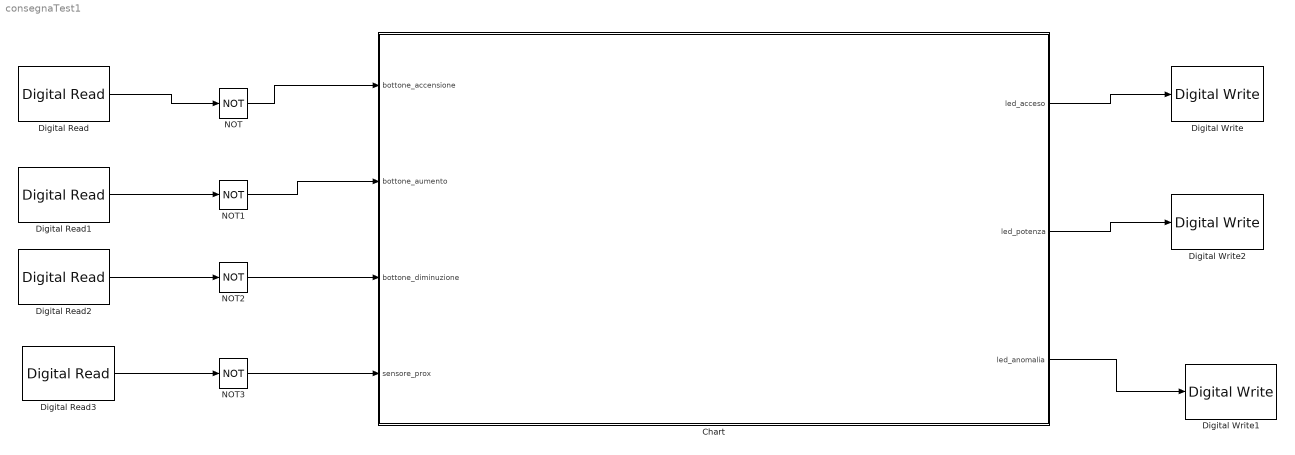
== stateflow chart consegnaTest1/Chart ==
  state Fornello_induzione
    state Accensione [parallel]
      state led_accensione [parallel]
        state led_acceso
          led_acceso=1;
        state led_spento
          led_acceso = 0;
        (default) -> Fornello_induzione.Accensione.led_accensione.led_spento
        Fornello_induzione.Accensione.led_accensione.led_acceso -> Fornello_induzione.Accensione.led_accensione.led_spento : [evento_spegnimento == 1]
        Fornello_induzione.Accensione.led_accensione.led_spento -> Fornello_induzione.Accensione.led_accensione.led_acceso : [bottone_accensione == 1 && evento_spegnimento == 0]
      state Logica_Accensione_Spegnimento [parallel]
        state Acceso
          acceso = 1;
        state Spento
          acceso = 0;
        (default) -> Spento
        Acceso -> Spento : [evento_spegnimento == 1]
        Spento -> Acceso : [bottone_accensione == 1 && evento_spegnimento == 0]
      state Bottone_Accensione [parallel]
        state NonPremuto
          evento_spegnimento = 0;
        state InPressione
        state Premuto
          evento_spegnimento = 1;
        (default) -> NonPremuto
        InPressione -> Premuto [order 2] : [after(1,sec)]
        NonPremuto -> InPressione : [bottone_accensione == 1 && acceso == 1]
        InPressione -> NonPremuto [order 1] : [bottone_accensione == 0]
        Premuto -> NonPremuto : [bottone_accensione == 0]
      (default) -> led_accensione [order 3]
      (default) -> Logica_Accensione_Spegnimento [order 1]
      (default) -> Bottone_Accensione [order 2]
    state Cambiamento_Potenza_Fornello [parallel]
      state Gestione_Potenza [parallel]
        state Potenza_300
          potenza=300;
          frequenza=2;
          attivo = 1;
        state Potenza_500
          potenza=500;
          frequenza=1;
          attivo = 1;
        state Appoggio
          en: app = contatore;
        state Potenza_Attivabile
          potenza = 0;
          attivo = 0;
          frequenza = 0;
        state Potenza_Non_Attivabile
          contatore = 0;
          potenza = 0;
          frequenza = 0;
        state Potenza_1000
          potenza=1000;
          frequenza=0.5;
          attivo = 1;
        state Potenza_1500
          potenza=1500;
          frequenza=0.25;
          attivo = 1;
        Potenza_500 -> Potenza_Non_Attivabile [order 2] : [disattivaFornello == 1 || acceso == 0]
        Potenza_300 -> Potenza_Non_Attivabile [order 2] : [disattivaFornello == 1 || acceso == 0]
        Appoggio -> Potenza_300 [order 2] : [after(5,sec) && contatore == 1]
        Potenza_300 -> Appoggio [order 1] : [contatore ~= 1]
        Appoggio -> Potenza_500 [order 4] : [after(5,sec) && contatore == 2]
        Potenza_500 -> Appoggio [order 1] : [contatore ~= 2]
        Appoggio -> Appoggio [order 3] : [app ~= contatore]
        (default) -> Potenza_Non_Attivabile
        Potenza_Non_Attivabile -> Potenza_Attivabile : [pentola == 1]
        Potenza_Attivabile -> Appoggio [order 2] : [contatore ~= 0]
        Potenza_Attivabile -> Potenza_Non_Attivabile [order 1] : [pentola == 0]
        Appoggio -> Potenza_Attivabile [order 1] : [after(5,sec) && contatore == 0]
        Appoggio -> Potenza_1000 [order 5] : [after(5,sec) && contatore == 3]
        Potenza_1000 -> Appoggio [order 1] : [contatore ~= 3]
        Potenza_1000 -> Potenza_Non_Attivabile [order 2] : [disattivaFornello == 1 || acceso == 0]
        Potenza_1500 -> Potenza_Non_Attivabile [order 2] : [disattivaFornello == 1 || acceso == 0]
        Appoggio -> Potenza_Non_Attivabile [order 7] : [disattivaFornello == 1 || acceso == 0 ]
        Potenza_1500 -> Appoggio [order 1] : [contatore ~= 4]
        Appoggio -> Potenza_1500 [order 6] : [after(5,sec) && contatore == 4]
      state Bottone_Aumento [parallel]
        state Non_Premuto_Aumento_Potenza
        state In_Pressione_Aumento
        state PremutoAumento
          en: contatore = contatore + 1;
        (default) -> Non_Premuto_Aumento_Potenza
        In_Pressione_Aumento -> PremutoAumento [order 2] : [after(1,sec)]
        Non_Premuto_Aumento_Potenza -> In_Pressione_Aumento : [bottone_aumento == 1 && bottone_diminuzione == 0]
        In_Pressione_Aumento -> Non_Premuto_Aumento_Potenza [order 1] : [bottone_aumento == 0 || contatore == 4 || acceso == 0]
        PremutoAumento -> Non_Premuto_Aumento_Potenza : [bottone_aumento == 0 || acceso == 0]
      state Bottone_Diminuzione [parallel]
        state Non_Premuto_Diminuzione_Potenza
        state In_Pressione_Dimuzione
        state Premuto_Diminuzione
          en: contatore = contatore - 1;
        (default) -> Non_Premuto_Diminuzione_Potenza
        In_Pressione_Dimuzione -> Premuto_Diminuzione [order 2] : [after(1,sec)]
        Non_Premuto_Diminuzione_Potenza -> In_Pressione_Dimuzione : [bottone_diminuzione == 1 && bottone_aumento == 0]
        In_Pressione_Dimuzione -> Non_Premuto_Diminuzione_Potenza [order 1] : [bottone_diminuzione == 0 || contatore == 0 || acceso == 0]
        Premuto_Diminuzione -> Non_Premuto_Diminuzione_Potenza : [bottone_diminuzione == 0 || acceso == 0]
      state Toggling_Led [parallel]
        state led_spento
          led_potenza = 0;
        state Led_Non_Attivabile
          led_potenza = 0;
        state led_acceso
          led_potenza = 1;
        Led_Non_Attivabile -> Fornello_induzione.Cambiamento_Potenza_Fornello.Toggling_Led.led_spento : [acceso == 1 && frequenza ~= 0 ]
        (default) -> Led_Non_Attivabile
        Fornello_induzione.Cambiamento_Potenza_Fornello.Toggling_Led.led_spento -> Led_Non_Attivabile [order 2] : [acceso == 0 || disattivaFornello == 1 || frequenza ==0 ]
        Fornello_induzione.Cambiamento_Potenza_Fornello.Toggling_Led.led_spento -> Fornello_induzione.Cambiamento_Potenza_Fornello.Toggling_Led.led_acceso [order 1] : [after(frequenza,sec) && frequenza ~= 0]
        Fornello_induzione.Cambiamento_Potenza_Fornello.Toggling_Led.led_acceso -> Fornello_induzione.Cambiamento_Potenza_Fornello.Toggling_Led.led_spento [order 1] : [after(frequenza, sec) && frequenza ~= 0]
        Fornello_induzione.Cambiamento_Potenza_Fornello.Toggling_Led.led_acceso -> Led_Non_Attivabile [order 2] : [acceso == 0 || disattivaFornello == 1 || frequenza == 0]
      (default) -> Gestione_Potenza [order 4]
      (default) -> Bottone_Aumento [order 1]
      (default) -> Bottone_Diminuzione [order 2]
      (default) -> Toggling_Led [order 3]
    state Prossimita_Pentola [parallel]
      state Logica_Sensore_Pentola [parallel]
        state SensoreNonAttivato
          disattivaFornello = 0;
          accendi_led_anomalia = 0;
          pentola = 0;
        state SensoreAttivato
          anomalia = 0;
        state RilevamentoPentola
          accendi_led_anomalia = 0;
          disattivaFornello = 0;
        state DisattivaFornello
          disattivaFornello = 1;
          accendi_led_anomalia = 0;
          pentola = 0;
        state Allarme
          accendi_led_anomalia = 1;
        RilevamentoPentola -> SensoreNonAttivato [order 3] : [acceso == 0]
        (default) -> SensoreNonAttivato
        SensoreAttivato -> RilevamentoPentola [order 2] : [pentola == 1]
        SensoreNonAttivato -> SensoreAttivato : [acceso == 1]
        SensoreAttivato -> SensoreNonAttivato [order 1] : [acceso == 0]
        RilevamentoPentola -> SensoreAttivato [order 1] : [pentola == 0 && attivo == 0]
        Allarme -> SensoreNonAttivato [order 2] : [acceso == 0]
        DisattivaFornello -> SensoreNonAttivato [order 2] : [acceso == 0]
        DisattivaFornello -> RilevamentoPentola [order 1] : [pentola == 1]
        Allarme -> RilevamentoPentola [order 1] : [pentola == 1]
        RilevamentoPentola -> Allarme [order 2] : [pentola == 0 && attivo == 1]
        Allarme -> DisattivaFornello [order 3] : [after(10,sec) && pentola == 0]
      state Sensore_Prossimita [parallel]
        state Pentola_assente
          pentola = 0;
        state Pentola_Presente
          pentola = 1;
        (default) -> Pentola_assente
        Pentola_assente -> Pentola_Presente : [sensore_prox == 1 && acceso == 1]
        Pentola_Presente -> Pentola_assente : [sensore_prox == 0 || acceso == 0]
      state Led_Anomalia [parallel]
        state Led_spento
          led_anomalia = 0;
        state Led_Acceso
          led_anomalia = 1;
        (default) -> Led_spento
        Led_spento -> Led_Acceso : [accendi_led_anomalia == 1]
        Led_Acceso -> Led_spento : [accendi_led_anomalia == 0]
      (default) -> Logica_Sensore_Pentola [order 1]
      (default) -> Sensore_Prossimita [order 2]
      (default) -> Led_Anomalia [order 3]
    (default) -> Accensione [order 1]
    (default) -> Cambiamento_Potenza_Fornello [order 3]
    (default) -> Prossimita_Pentola [order 2]
  (default) -> Fornello_induzione
  data: bottone_accensione input; bottone_aumento input; bottone_diminuzione input; sensore_prox input; acceso local; app local; attivo local; contatore local; disattivaFornello local; evento_spegnimento local; pentola local; anomalia local; led_acceso output; potenza local; led_potenza output; frequenza local =0; accendi_led_anomalia local; led_anomalia output

/*
 * Academic License - for use in teaching, academic research, and meeting
 * course requirements at degree granting institutions only.  Not for
 * government, commercial, or other organizational use.
 *
 * File: consegnaTest1.c
 *
 * Code generated for Simulink model 'consegnaTest1'.
 *
 * Model version                  : 2.2
 * Simulink Coder version         : 9.9 (R2023a) 19-Nov-2022
 * C/C++ source code generated on : Sat Jun 17 20:35:03 2023
 *
 * Target selection: ert.tlc
 * Embedded hardware selection: ARM Compatible->ARM Cortex
 * Code generation objectives: Unspecified
 * Validation result: Not run
 */

#include "consegnaTest1.h"
#include "rtwtypes.h"
#include "consegnaTest1_types.h"
#include <math.h>

/* Named constants for Chart: '<Root>/Chart' */
#define IN_Non_Premuto_Aumento_Potenza ((uint8_T)2U)
#define IN_Non_Premuto_Diminuzione_Pote ((uint8_T)2U)
#define conse_IN_In_Pressione_Dimuzione ((uint8_T)1U)
#define conse_IN_Potenza_Non_Attivabile ((uint8_T)7U)
#define consegn_IN_In_Pressione_Aumento ((uint8_T)1U)
#define consegnaT_IN_Led_Non_Attivabile ((uint8_T)1U)
#define consegnaT_IN_Potenza_Attivabile ((uint8_T)6U)
#define consegnaT_IN_RilevamentoPentola ((uint8_T)3U)
#define consegnaT_IN_SensoreNonAttivato ((uint8_T)5U)
#define consegnaTe_IN_DisattivaFornello ((uint8_T)2U)
#define consegnaTes_IN_Pentola_Presente ((uint8_T)1U)
#define consegnaTest1_IN_Acceso        ((uint8_T)1U)
#define consegnaTest1_IN_Allarme       ((uint8_T)1U)
#define consegnaTest1_IN_Appoggio      ((uint8_T)1U)
#define consegnaTest1_IN_InPressione   ((uint8_T)1U)
#define consegnaTest1_IN_Led_Acceso    ((uint8_T)1U)
#define consegnaTest1_IN_Led_spento    ((uint8_T)2U)
#define consegnaTest1_IN_NonPremuto    ((uint8_T)2U)
#define consegnaTest1_IN_Potenza_1000  ((uint8_T)2U)
#define consegnaTest1_IN_Potenza_1500  ((uint8_T)3U)
#define consegnaTest1_IN_Potenza_300   ((uint8_T)4U)
#define consegnaTest1_IN_Potenza_500   ((uint8_T)5U)
#define consegnaTest1_IN_Premuto       ((uint8_T)3U)
#define consegnaTest1_IN_PremutoAumento ((uint8_T)3U)
#define consegnaTest1_IN_Spento        ((uint8_T)2U)
#define consegnaTest1_IN_led_acceso    ((uint8_T)2U)
#define consegnaTest1_IN_led_acceso_i  ((uint8_T)1U)
#define consegnaTest1_IN_led_spento    ((uint8_T)3U)
#define consegnaTest1_IN_led_spento_f  ((uint8_T)2U)
#define consegnaTest_IN_Pentola_assente ((uint8_T)2U)
#define consegnaTest_IN_SensoreAttivato ((uint8_T)4U)
#define consegna_IN_Premuto_Diminuzione ((uint8_T)3U)

/* Block signals (default storage) */
B_consegnaTest1_T consegnaTest1_B;

/* Block states (default storage) */
DW_consegnaTest1_T consegnaTest1_DW;

/* Real-time model */
static RT_MODEL_consegnaTest1_T consegnaTest1_M_;
RT_MODEL_consegnaTest1_T *const consegnaTest1_M = &consegnaTest1_M_;

/* Forward declaration for local functions */
static void consegnaTest1_Gestione_Potenza(void);
static void co_Cambiamento_Potenza_Fornello(real_T *led_potenza, const boolean_T
  *NOT2, const boolean_T *NOT1);
static void consegnaTest_Fornello_induzione(real_T *led_potenza, real_T
  *led_anomalia, real_T *led_acceso, const boolean_T *NOT3, const boolean_T
  *NOT2, const boolean_T *NOT1);

/* Function for Chart: '<Root>/Chart' */
static void consegnaTest1_Gestione_Potenza(void)
{
  switch (consegnaTest1_DW.is_Gestione_Potenza) {
   case consegnaTest1_IN_Appoggio:
    if ((consegnaTest1_DW.temporalCounter_i2 >= 25U) &&
        (consegnaTest1_DW.contatore == 0.0)) {
      consegnaTest1_DW.is_Gestione_Potenza = consegnaT_IN_Potenza_Attivabile;
      consegnaTest1_DW.attivo = 0.0;
      consegnaTest1_DW.frequenza = 0.0;
    } else if ((consegnaTest1_DW.temporalCounter_i2 >= 25U) &&
               (consegnaTest1_DW.contatore == 1.0)) {
      consegnaTest1_DW.is_Gestione_Potenza = consegnaTest1_IN_Potenza_300;
      consegnaTest1_DW.frequenza = 2.0;
      consegnaTest1_DW.attivo = 1.0;
    } else if (consegnaTest1_DW.app != consegnaTest1_DW.contatore) {
      consegnaTest1_DW.is_Gestione_Potenza = consegnaTest1_IN_Appoggio;
      consegnaTest1_DW.temporalCounter_i2 = 0U;
      consegnaTest1_DW.app = consegnaTest1_DW.contatore;
    } else if ((consegnaTest1_DW.temporalCounter_i2 >= 25U) &&
               (consegnaTest1_DW.contatore == 2.0)) {
      consegnaTest1_DW.is_Gestione_Potenza = consegnaTest1_IN_Potenza_500;
      consegnaTest1_DW.frequenza = 1.0;
      consegnaTest1_DW.attivo = 1.0;
    } else if ((consegnaTest1_DW.temporalCounter_i2 >= 25U) &&
               (consegnaTest1_DW.contatore == 3.0)) {
      consegnaTest1_DW.is_Gestione_Potenza = consegnaTest1_IN_Potenza_1000;
      consegnaTest1_DW.frequenza = 0.5;
      consegnaTest1_DW.attivo = 1.0;
    } else if ((consegnaTest1_DW.temporalCounter_i2 >= 25U) &&
               (consegnaTest1_DW.contatore == 4.0)) {
      consegnaTest1_DW.is_Gestione_Potenza = consegnaTest1_IN_Potenza_1500;
      consegnaTest1_DW.frequenza = 0.25;
      consegnaTest1_DW.attivo = 1.0;
    } else if ((consegnaTest1_DW.disattivaFornello == 1.0) ||
               (consegnaTest1_DW.acceso == 0.0)) {
      consegnaTest1_DW.is_Gestione_Potenza = conse_IN_Potenza_Non_Attivabile;
      consegnaTest1_DW.contatore = 0.0;
      consegnaTest1_DW.frequenza = 0.0;
    }
    break;

   case consegnaTest1_IN_Potenza_1000:
    if (consegnaTest1_DW.contatore != 3.0) {
      consegnaTest1_DW.is_Gestione_Potenza = consegnaTest1_IN_Appoggio;
      consegnaTest1_DW.temporalCounter_i2 = 0U;
      consegnaTest1_DW.app = consegnaTest1_DW.contatore;
    } else if ((consegnaTest1_DW.disattivaFornello == 1.0) ||
               (consegnaTest1_DW.acceso == 0.0)) {
      consegnaTest1_DW.is_Gestione_Potenza = conse_IN_Potenza_Non_Attivabile;
      consegnaTest1_DW.contatore = 0.0;
      consegnaTest1_DW.frequenza = 0.0;
    } else {
      consegnaTest1_DW.frequenza = 0.5;
      consegnaTest1_DW.attivo = 1.0;
    }
    break;

   case consegnaTest1_IN_Potenza_1500:
    if (consegnaTest1_DW.contatore != 4.0) {
      consegnaTest1_DW.is_Gestione_Potenza = consegnaTest1_IN_Appoggio;
      consegnaTest1_DW.temporalCounter_i2 = 0U;
      consegnaTest1_DW.app = consegnaTest1_DW.contatore;
    } else if ((consegnaTest1_DW.disattivaFornello == 1.0) ||
               (consegnaTest1_DW.acceso == 0.0)) {
      consegnaTest1_DW.is_Gestione_Potenza = conse_IN_Potenza_Non_Attivabile;
      consegnaTest1_DW.contatore = 0.0;
      consegnaTest1_DW.frequenza = 0.0;
    } else {
      consegnaTest1_DW.frequenza = 0.25;
      consegnaTest1_DW.attivo = 1.0;
    }
    break;

   case consegnaTest1_IN_Potenza_300:
    if (consegnaTest1_DW.contatore != 1.0) {
      consegnaTest1_DW.is_Gestione_Potenza = consegnaTest1_IN_Appoggio;
      consegnaTest1_DW.temporalCounter_i2 = 0U;
      consegnaTest1_DW.app = consegnaTest1_DW.contatore;
    } else if ((consegnaTest1_DW.disattivaFornello == 1.0) ||
               (consegnaTest1_DW.acceso == 0.0)) {
      consegnaTest1_DW.is_Gestione_Potenza = conse_IN_Potenza_Non_Attivabile;
      consegnaTest1_DW.contatore = 0.0;
      consegnaTest1_DW.frequenza = 0.0;
    } else {
      consegnaTest1_DW.frequenza = 2.0;
      consegnaTest1_DW.attivo = 1.0;
    }
    break;

   case consegnaTest1_IN_Potenza_500:
    if (consegnaTest1_DW.contatore != 2.0) {
      consegnaTest1_DW.is_Gestione_Potenza = consegnaTest1_IN_Appoggio;
      consegnaTest1_DW.temporalCounter_i2 = 0U;
      consegnaTest1_DW.app = consegnaTest1_DW.contatore;
    } else if ((consegnaTest1_DW.disattivaFornello == 1.0) ||
               (consegnaTest1_DW.acceso == 0.0)) {
      consegnaTest1_DW.is_Gestione_Potenza = conse_IN_Potenza_Non_Attivabile;
      consegnaTest1_DW.contatore = 0.0;
      consegnaTest1_DW.frequenza = 0.0;
    } else {
      consegnaTest1_DW.frequenza = 1.0;
      consegnaTest1_DW.attivo = 1.0;
    }
    break;

   case consegnaT_IN_Potenza_Attivabile:
    if (consegnaTest1_DW.pentola == 0.0) {
      consegnaTest1_DW.is_Gestione_Potenza = conse_IN_Potenza_Non_Attivabile;
      consegnaTest1_DW.contatore = 0.0;
      consegnaTest1_DW.frequenza = 0.0;
    } else if (consegnaTest1_DW.contatore != 0.0) {
      consegnaTest1_DW.is_Gestione_Potenza = consegnaTest1_IN_Appoggio;
      consegnaTest1_DW.temporalCounter_i2 = 0U;
      consegnaTest1_DW.app = consegnaTest1_DW.contatore;
    } else {
      consegnaTest1_DW.attivo = 0.0;
      consegnaTest1_DW.frequenza = 0.0;
    }
    break;

   default:
    /* case IN_Potenza_Non_Attivabile: */
    if (consegnaTest1_DW.pentola == 1.0) {
      consegnaTest1_DW.is_Gestione_Potenza = consegnaT_IN_Potenza_Attivabile;
      consegnaTest1_DW.attivo = 0.0;
      consegnaTest1_DW.frequenza = 0.0;
    } else {
      consegnaTest1_DW.contatore = 0.0;
      consegnaTest1_DW.frequenza = 0.0;
    }
    break;
  }
}

/* Function for Chart: '<Root>/Chart' */
static void co_Cambiamento_Potenza_Fornello(real_T *led_potenza, const boolean_T
  *NOT2, const boolean_T *NOT1)
{
  consegnaTest1_Gestione_Potenza();
  switch (consegnaTest1_DW.is_Bottone_Aumento) {
   case consegn_IN_In_Pressione_Aumento:
    if ((!*NOT1) || (consegnaTest1_DW.contatore == 4.0) ||
        (consegnaTest1_DW.acceso == 0.0)) {
      consegnaTest1_DW.is_Bottone_Aumento = IN_Non_Premuto_Aumento_Potenza;
    } else if (consegnaTest1_DW.temporalCounter_i3 >= 5U) {
      consegnaTest1_DW.is_Bottone_Aumento = consegnaTest1_IN_PremutoAumento;
      consegnaTest1_DW.contatore++;
    }
    break;

   case IN_Non_Premuto_Aumento_Potenza:
    if ((*NOT1) && (!*NOT2)) {
      consegnaTest1_DW.is_Bottone_Aumento = consegn_IN_In_Pressione_Aumento;
      consegnaTest1_DW.temporalCounter_i3 = 0U;
    }
    break;

   default:
    /* case IN_PremutoAumento: */
    if ((!*NOT1) || (consegnaTest1_DW.acceso == 0.0)) {
      consegnaTest1_DW.is_Bottone_Aumento = IN_Non_Premuto_Aumento_Potenza;
    }
    break;
  }

  switch (consegnaTest1_DW.is_Bottone_Diminuzione) {
   case conse_IN_In_Pressione_Dimuzione:
    if ((!*NOT2) || (consegnaTest1_DW.contatore == 0.0) ||
        (consegnaTest1_DW.acceso == 0.0)) {
      consegnaTest1_DW.is_Bottone_Diminuzione = IN_Non_Premuto_Diminuzione_Pote;
    } else if (consegnaTest1_DW.temporalCounter_i4 >= 5U) {
      consegnaTest1_DW.is_Bottone_Diminuzione = consegna_IN_Premuto_Diminuzione;
      consegnaTest1_DW.contatore--;
    }
    break;

   case IN_Non_Premuto_Diminuzione_Pote:
    if ((*NOT2) && (!*NOT1)) {
      consegnaTest1_DW.is_Bottone_Diminuzione = conse_IN_In_Pressione_Dimuzione;
      consegnaTest1_DW.temporalCounter_i4 = 0U;
    }
    break;

   default:
    /* case IN_Premuto_Diminuzione: */
    if ((!*NOT2) || (consegnaTest1_DW.acceso == 0.0)) {
      consegnaTest1_DW.is_Bottone_Diminuzione = IN_Non_Premuto_Diminuzione_Pote;
    }
    break;
  }

  switch (consegnaTest1_DW.is_Toggling_Led) {
   case consegnaT_IN_Led_Non_Attivabile:
    if ((consegnaTest1_DW.acceso == 1.0) && (consegnaTest1_DW.frequenza != 0.0))
    {
      consegnaTest1_DW.is_Toggling_Led = consegnaTest1_IN_led_spento;
      consegnaTest1_DW.temporalCounter_i5 = 0U;
      *led_potenza = 0.0;
    } else {
      *led_potenza = 0.0;
    }
    break;

   case consegnaTest1_IN_led_acceso:
    if ((consegnaTest1_DW.temporalCounter_i5 >= (uint32_T)ceil
         (consegnaTest1_DW.frequenza * 5.0)) && (consegnaTest1_DW.frequenza !=
         0.0)) {
      consegnaTest1_DW.is_Toggling_Led = consegnaTest1_IN_led_spento;
      consegnaTest1_DW.temporalCounter_i5 = 0U;
      *led_potenza = 0.0;
    } else if ((consegnaTest1_DW.acceso == 0.0) ||
               (consegnaTest1_DW.disattivaFornello == 1.0) ||
               (consegnaTest1_DW.frequenza == 0.0)) {
      consegnaTest1_DW.is_Toggling_Led = consegnaT_IN_Led_Non_Attivabile;
      *led_potenza = 0.0;
    } else {
      *led_potenza = 1.0;
    }
    break;

   default:
    /* case IN_led_spento: */
    if ((consegnaTest1_DW.temporalCounter_i5 >= (uint32_T)ceil
         (consegnaTest1_DW.frequenza * 5.0)) && (consegnaTest1_DW.frequenza !=
         0.0)) {
      consegnaTest1_DW.is_Toggling_Led = consegnaTest1_IN_led_acceso;
      consegnaTest1_DW.temporalCounter_i5 = 0U;
      *led_potenza = 1.0;
    } else if ((consegnaTest1_DW.acceso == 0.0) ||
               (consegnaTest1_DW.disattivaFornello == 1.0) ||
               (consegnaTest1_DW.frequenza == 0.0)) {
      consegnaTest1_DW.is_Toggling_Led = consegnaT_IN_Led_Non_Attivabile;
      *led_potenza = 0.0;
    } else {
      *led_potenza = 0.0;
    }
    break;
  }
}

/* Function for Chart: '<Root>/Chart' */
static void consegnaTest_Fornello_induzione(real_T *led_potenza, real_T
  *led_anomalia, real_T *led_acceso, const boolean_T *NOT3, const boolean_T
  *NOT2, const boolean_T *NOT1)
{
  co_Cambiamento_Potenza_Fornello(led_potenza, NOT2, NOT1);
  if (consegnaTest1_DW.is_Logica_Accensione_Spegniment ==
      consegnaTest1_IN_Acceso) {
    if (consegnaTest1_DW.evento_spegnimento == 1.0) {
      consegnaTest1_DW.is_Logica_Accensione_Spegniment = consegnaTest1_IN_Spento;
      consegnaTest1_DW.acceso = 0.0;
    } else {
      consegnaTest1_DW.acceso = 1.0;
    }

    /* case IN_Spento: */
  } else if (consegnaTest1_B.NOT && (consegnaTest1_DW.evento_spegnimento == 0.0))
  {
    consegnaTest1_DW.is_Logica_Accensione_Spegniment = consegnaTest1_IN_Acceso;
    consegnaTest1_DW.acceso = 1.0;
  } else {
    consegnaTest1_DW.acceso = 0.0;
  }

  switch (consegnaTest1_DW.is_Bottone_Accensione) {
   case consegnaTest1_IN_InPressione:
    if (!consegnaTest1_B.NOT) {
      consegnaTest1_DW.is_Bottone_Accensione = consegnaTest1_IN_NonPremuto;
      consegnaTest1_DW.evento_spegnimento = 0.0;
    } else if (consegnaTest1_DW.temporalCounter_i1 >= 5U) {
      consegnaTest1_DW.is_Bottone_Accensione = consegnaTest1_IN_Premuto;
      consegnaTest1_DW.evento_spegnimento = 1.0;
    }
    break;

   case consegnaTest1_IN_NonPremuto:
    if (consegnaTest1_B.NOT && (consegnaTest1_DW.acceso == 1.0)) {
      consegnaTest1_DW.is_Bottone_Accensione = consegnaTest1_IN_InPressione;
      consegnaTest1_DW.temporalCounter_i1 = 0U;
    } else {
      consegnaTest1_DW.evento_spegnimento = 0.0;
    }
    break;

   default:
    /* case IN_Premuto: */
    if (!consegnaTest1_B.NOT) {
      consegnaTest1_DW.is_Bottone_Accensione = consegnaTest1_IN_NonPremuto;
      consegnaTest1_DW.evento_spegnimento = 0.0;
    } else {
      consegnaTest1_DW.evento_spegnimento = 1.0;
    }
    break;
  }

  if (consegnaTest1_DW.is_led_accensione == consegnaTest1_IN_led_acceso_i) {
    if (consegnaTest1_DW.evento_spegnimento == 1.0) {
      consegnaTest1_DW.is_led_accensione = consegnaTest1_IN_led_spento_f;
      *led_acceso = 0.0;
    } else {
      *led_acceso = 1.0;
    }

    /* case IN_led_spento: */
  } else if (consegnaTest1_B.NOT && (consegnaTest1_DW.evento_spegnimento == 0.0))
  {
    consegnaTest1_DW.is_led_accensione = consegnaTest1_IN_led_acceso_i;
    *led_acceso = 1.0;
  } else {
    *led_acceso = 0.0;
  }

  switch (consegnaTest1_DW.is_Logica_Sensore_Pentola) {
   case consegnaTest1_IN_Allarme:
    if (consegnaTest1_DW.pentola == 1.0) {
      consegnaTest1_DW.is_Logica_Sensore_Pentola =
        consegnaT_IN_RilevamentoPentola;
      consegnaTest1_DW.accendi_led_anomalia = 0.0;
      consegnaTest1_DW.disattivaFornello = 0.0;
    } else if (consegnaTest1_DW.acceso == 0.0) {
      consegnaTest1_DW.is_Logica_Sensore_Pentola =
        consegnaT_IN_SensoreNonAttivato;
      consegnaTest1_DW.disattivaFornello = 0.0;
      consegnaTest1_DW.accendi_led_anomalia = 0.0;
    } else if ((consegnaTest1_DW.temporalCounter_i6 >= 50U) &&
               (consegnaTest1_DW.pentola == 0.0)) {
      consegnaTest1_DW.is_Logica_Sensore_Pentola =
        consegnaTe_IN_DisattivaFornello;
      consegnaTest1_DW.disattivaFornello = 1.0;
      consegnaTest1_DW.accendi_led_anomalia = 0.0;
    } else {
      consegnaTest1_DW.accendi_led_anomalia = 1.0;
    }
    break;

   case consegnaTe_IN_DisattivaFornello:
    if (consegnaTest1_DW.pentola == 1.0) {
      consegnaTest1_DW.is_Logica_Sensore_Pentola =
        consegnaT_IN_RilevamentoPentola;
      consegnaTest1_DW.accendi_led_anomalia = 0.0;
      consegnaTest1_DW.disattivaFornello = 0.0;
    } else if (consegnaTest1_DW.acceso == 0.0) {
      consegnaTest1_DW.is_Logica_Sensore_Pentola =
        consegnaT_IN_SensoreNonAttivato;
      consegnaTest1_DW.disattivaFornello = 0.0;
      consegnaTest1_DW.accendi_led_anomalia = 0.0;
    } else {
      consegnaTest1_DW.disattivaFornello = 1.0;
      consegnaTest1_DW.accendi_led_anomalia = 0.0;
    }
    break;

   case consegnaT_IN_RilevamentoPentola:
    if ((consegnaTest1_DW.pentola == 0.0) && (consegnaTest1_DW.attivo == 0.0)) {
      consegnaTest1_DW.is_Logica_Sensore_Pentola =
        consegnaTest_IN_SensoreAttivato;
    } else if ((consegnaTest1_DW.pentola == 0.0) && (consegnaTest1_DW.attivo ==
                1.0)) {
      consegnaTest1_DW.is_Logica_Sensore_Pentola = consegnaTest1_IN_Allarme;
      consegnaTest1_DW.temporalCounter_i6 = 0U;
      consegnaTest1_DW.accendi_led_anomalia = 1.0;
    } else if (consegnaTest1_DW.acceso == 0.0) {
      consegnaTest1_DW.is_Logica_Sensore_Pentola =
        consegnaT_IN_SensoreNonAttivato;
      consegnaTest1_DW.disattivaFornello = 0.0;
      consegnaTest1_DW.accendi_led_anomalia = 0.0;
    } else {
      consegnaTest1_DW.accendi_led_anomalia = 0.0;
      consegnaTest1_DW.disattivaFornello = 0.0;
    }
    break;

   case consegnaTest_IN_SensoreAttivato:
    if (consegnaTest1_DW.acceso == 0.0) {
      consegnaTest1_DW.is_Logica_Sensore_Pentola =
        consegnaT_IN_SensoreNonAttivato;
      consegnaTest1_DW.disattivaFornello = 0.0;
      consegnaTest1_DW.accendi_led_anomalia = 0.0;
    } else if (consegnaTest1_DW.pentola == 1.0) {
      consegnaTest1_DW.is_Logica_Sensore_Pentola =
        consegnaT_IN_RilevamentoPentola;
      consegnaTest1_DW.accendi_led_anomalia = 0.0;
      consegnaTest1_DW.disattivaFornello = 0.0;
    }
    break;

   default:
    /* case IN_SensoreNonAttivato: */
    if (consegnaTest1_DW.acceso == 1.0) {
      consegnaTest1_DW.is_Logica_Sensore_Pentola =
        consegnaTest_IN_SensoreAttivato;
    } else {
      consegnaTest1_DW.disattivaFornello = 0.0;
      consegnaTest1_DW.accendi_led_anomalia = 0.0;
    }
    break;
  }

  if (consegnaTest1_DW.is_Sensore_Prossimita == consegnaTes_IN_Pentola_Presente)
  {
    if ((!*NOT3) || (consegnaTest1_DW.acceso == 0.0)) {
      consegnaTest1_DW.is_Sensore_Prossimita = consegnaTest_IN_Pentola_assente;
      consegnaTest1_DW.pentola = 0.0;
    } else {
      consegnaTest1_DW.pentola = 1.0;
    }

    /* case IN_Pentola_assente: */
  } else if ((*NOT3) && (consegnaTest1_DW.acceso == 1.0)) {
    consegnaTest1_DW.is_Sensore_Prossimita = consegnaTes_IN_Pentola_Presente;
    consegnaTest1_DW.pentola = 1.0;
  } else {
    consegnaTest1_DW.pentola = 0.0;
  }

  if (consegnaTest1_DW.is_Led_Anomalia == consegnaTest1_IN_Led_Acceso) {
    if (consegnaTest1_DW.accendi_led_anomalia == 0.0) {
      consegnaTest1_DW.is_Led_Anomalia = consegnaTest1_IN_Led_spento;
      *led_anomalia = 0.0;
    } else {
      *led_anomalia = 1.0;
    }

    /* case IN_Led_spento: */
  } else if (consegnaTest1_DW.accendi_led_anomalia == 1.0) {
    consegnaTest1_DW.is_Led_Anomalia = consegnaTest1_IN_Led_Acceso;
    *led_anomalia = 1.0;
  } else {
    *led_anomalia = 0.0;
  }
}

/* Model step function */
void consegnaTest1_step(void)
{
  real_T led_acceso;
  real_T led_anomalia;
  real_T led_potenza;
  boolean_T NOT1;
  boolean_T NOT2;
  boolean_T NOT3;

  /* MATLABSystem: '<Root>/Digital Read' */
  if (consegnaTest1_DW.obj_n.SampleTime !=
      consegnaTest1_P.DigitalRead_SampleTime) {
    consegnaTest1_DW.obj_n.SampleTime = consegnaTest1_P.DigitalRead_SampleTime;
  }

  NOT1 = MW_digitalIO_read(consegnaTest1_DW.obj_n.MW_DIGITALIO_HANDLE);

  /* Logic: '<Root>/NOT' incorporates:
   *  MATLABSystem: '<Root>/Digital Read'
   */
  consegnaTest1_B.NOT = !NOT1;

  /* MATLABSystem: '<Root>/Digital Read1' */
  if (consegnaTest1_DW.obj_j.SampleTime !=
      consegnaTest1_P.DigitalRead1_SampleTime) {
    consegnaTest1_DW.obj_j.SampleTime = consegnaTest1_P.DigitalRead1_SampleTime;
  }

  NOT1 = MW_digitalIO_read(consegnaTest1_DW.obj_j.MW_DIGITALIO_HANDLE);

  /* Logic: '<Root>/NOT1' incorporates:
   *  MATLABSystem: '<Root>/Digital Read1'
   */
  NOT1 = !NOT1;

  /* MATLABSystem: '<Root>/Digital Read2' */
  if (consegnaTest1_DW.obj_l.SampleTime !=
      consegnaTest1_P.DigitalRead2_SampleTime) {
    consegnaTest1_DW.obj_l.SampleTime = consegnaTest1_P.DigitalRead2_SampleTime;
  }

  NOT2 = MW_digitalIO_read(consegnaTest1_DW.obj_l.MW_DIGITALIO_HANDLE);

  /* Logic: '<Root>/NOT2' incorporates:
   *  MATLABSystem: '<Root>/Digital Read2'
   */
  NOT2 = !NOT2;

  /* MATLABSystem: '<Root>/Digital Read3' */
  if (consegnaTest1_DW.obj.SampleTime != consegnaTest1_P.DigitalRead3_SampleTime)
  {
    consegnaTest1_DW.obj.SampleTime = consegnaTest1_P.DigitalRead3_SampleTime;
  }

  NOT3 = MW_digitalIO_read(consegnaTest1_DW.obj.MW_DIGITALIO_HANDLE);

  /* Logic: '<Root>/NOT3' incorporates:
   *  MATLABSystem: '<Root>/Digital Read3'
   */
  NOT3 = !NOT3;

  /* Chart: '<Root>/Chart' */
  if (consegnaTest1_DW.temporalCounter_i1 < 7U) {
    consegnaTest1_DW.temporalCounter_i1++;
  }

  if (consegnaTest1_DW.temporalCounter_i2 < 31U) {
    consegnaTest1_DW.temporalCounter_i2++;
  }

  if (consegnaTest1_DW.temporalCounter_i3 < 7U) {
    consegnaTest1_DW.temporalCounter_i3++;
  }

  if (consegnaTest1_DW.temporalCounter_i4 < 7U) {
    consegnaTest1_DW.temporalCounter_i4++;
  }

  if (consegnaTest1_DW.temporalCounter_i5 < MAX_uint32_T) {
    consegnaTest1_DW.temporalCounter_i5++;
  }

  if (consegnaTest1_DW.temporalCounter_i6 < 63U) {
    consegnaTest1_DW.temporalCounter_i6++;
  }

  if (consegnaTest1_DW.is_active_c2_consegnaTest1 == 0U) {
    consegnaTest1_DW.is_active_c2_consegnaTest1 = 1U;
    consegnaTest1_DW.is_Gestione_Potenza = conse_IN_Potenza_Non_Attivabile;
    consegnaTest1_DW.contatore = 0.0;
    consegnaTest1_DW.frequenza = 0.0;
    consegnaTest1_DW.is_Bottone_Aumento = IN_Non_Premuto_Aumento_Potenza;
    consegnaTest1_DW.is_Bottone_Diminuzione = IN_Non_Premuto_Diminuzione_Pote;
    consegnaTest1_DW.is_Toggling_Led = consegnaT_IN_Led_Non_Attivabile;
    led_potenza = 0.0;
    consegnaTest1_DW.is_Logica_Accensione_Spegniment = consegnaTest1_IN_Spento;
    consegnaTest1_DW.acceso = 0.0;
    consegnaTest1_DW.is_Bottone_Accensione = consegnaTest1_IN_NonPremuto;
    consegnaTest1_DW.evento_spegnimento = 0.0;
    consegnaTest1_DW.is_led_accensione = consegnaTest1_IN_led_spento_f;
    led_acceso = 0.0;
    consegnaTest1_DW.is_Logica_Sensore_Pentola = consegnaT_IN_SensoreNonAttivato;
    consegnaTest1_DW.disattivaFornello = 0.0;
    consegnaTest1_DW.accendi_led_anomalia = 0.0;
    consegnaTest1_DW.is_Sensore_Prossimita = consegnaTest_IN_Pentola_assente;
    consegnaTest1_DW.pentola = 0.0;
    consegnaTest1_DW.is_Led_Anomalia = consegnaTest1_IN_Led_spento;
    led_anomalia = 0.0;
  } else {
    consegnaTest_Fornello_induzione(&led_potenza, &led_anomalia, &led_acceso,
      &NOT3, &NOT2, &NOT1);
  }

  /* End of Chart: '<Root>/Chart' */

  /* MATLABSystem: '<Root>/Digital Write' */
  MW_digitalIO_write(consegnaTest1_DW.obj_o.MW_DIGITALIO_HANDLE, led_acceso !=
                     0.0);

  /* MATLABSystem: '<Root>/Digital Write1' */
  MW_digitalIO_write(consegnaTest1_DW.obj_h.MW_DIGITALIO_HANDLE, led_anomalia !=
                     0.0);

  /* MATLABSystem: '<Root>/Digital Write2' */
  MW_digitalIO_write(consegnaTest1_DW.obj_g.MW_DIGITALIO_HANDLE, led_potenza !=
                     0.0);
}
